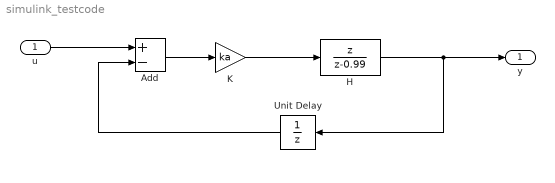
//
// File: simulink_testcode.cpp
//
// Code generated for Simulink model 'simulink_testcode'.
//
// Model version                  : 1.26
// Simulink Coder version         : 8.12 (R2017a) 16-Feb-2017
// C/C++ source code generated on : Tue Dec  5 17:39:51 2017
//
// Target selection: ert.tlc
// Embedded hardware selection: Intel->x86-64 (Linux 64)
// Code generation objectives: Unspecified
// Validation result: Not run
//
#include "simulink_testcode.h"
#include "simulink_testcode_private.h"

// Model step function
void simulink_testcodeModelClass::step()
{
  real_T rtb_H;
  real_T H_tmp;

  // DiscreteTransferFcn: '<Root>/H' incorporates:
  //   Gain: '<Root>/K'
  //   Inport: '<Root>/u'
  //   Sum: '<Root>/Add'
  //   UnitDelay: '<Root>/Unit Delay'

  H_tmp = (simulink_testcode_U.u - simulink_testcode_DW.UnitDelay_DSTATE) *
    simulink_testcode_P.ka - -0.99 * simulink_testcode_DW.H_states;
  rtb_H = 0.0 * simulink_testcode_DW.H_states + H_tmp;

  // Outport: '<Root>/y'
  simulink_testcode_Y.y = rtb_H;

  // Update for UnitDelay: '<Root>/Unit Delay'
  simulink_testcode_DW.UnitDelay_DSTATE = rtb_H;

  // Update for DiscreteTransferFcn: '<Root>/H'
  simulink_testcode_DW.H_states = H_tmp;
}
